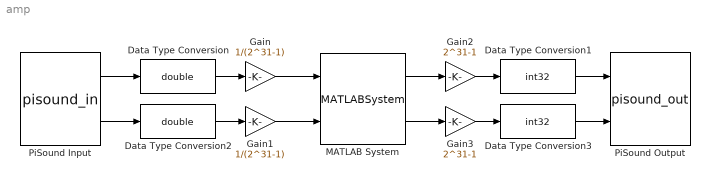
/*
 * Academic License - for use in teaching, academic research, and meeting
 * course requirements at degree granting institutions only.  Not for
 * government, commercial, or other organizational use.
 *
 * File: amp.c
 *
 * Code generated for Simulink model 'amp'.
 *
 * Model version                  : 1.10
 * Simulink Coder version         : 25.2 (R2025b) 28-Jul-2025
 * C/C++ source code generated on : Tue Mar  3 20:32:49 2026
 *
 * Target selection: ert.tlc
 * Embedded hardware selection: Intel->x86-64 (Windows64)
 * Code generation objectives: Unspecified
 * Validation result: Not run
 */

#include "amp.h"
#include <math.h>
#include "rt_nonfinite.h"
#include "rtwtypes.h"
#include "amp_private.h"

/* Block signals (default storage) */
B_amp_T amp_B;

/* Block states (default storage) */
DW_amp_T amp_DW;

/* Real-time model */
static RT_MODEL_amp_T amp_M_;
RT_MODEL_amp_T *const amp_M = &amp_M_;

/* Model step function */
void amp_step(void)
{
  real_T rtb_MATLABSystem_o1_0[128];
  real_T rtb_MATLABSystem_o2_0[128];
  real_T tmp;
  int32_T i;

  /* S-Function (pisound_in): '<Root>/PiSound Input' */

  /* Level2 S-Function Block: '<Root>/PiSound Input' (pisound_in) */
  {
    SimStruct *rts = amp_M->childSfunctions[0];
    sfcnOutputs(rts,0);
  }

  /* MATLABSystem: '<Root>/MATLAB System' incorporates:
   *  DataTypeConversion: '<Root>/Data Type Conversion'
   *  DataTypeConversion: '<Root>/Data Type Conversion2'
   *  Gain: '<Root>/Gain'
   *  Gain: '<Root>/Gain1'
   */
  if (amp_DW.obj.Gain != amp_P.Gain_rt) {
    amp_DW.obj.Gain = amp_P.Gain_rt;
  }

  if (amp_DW.obj.Bypass != amp_P.Bypass_rt) {
    amp_DW.obj.Bypass = amp_P.Bypass_rt;
  }

  /*  Implement algorithm  */
  if (amp_DW.obj.Bypass) {
    for (i = 0; i < 128; i++) {
      rtb_MATLABSystem_o1_0[i] = amp_P.Gain_Gain * (real_T)
        amp_B.PiSoundInput_o1[i];
      rtb_MATLABSystem_o2_0[i] = amp_P.Gain1_Gain * (real_T)
        amp_B.PiSoundInput_o2[i];
    }
  } else {
    for (i = 0; i < 128; i++) {
      rtb_MATLABSystem_o1_0[i] = amp_P.Gain_Gain * (real_T)
        amp_B.PiSoundInput_o1[i] * amp_DW.obj.Gain;
      rtb_MATLABSystem_o2_0[i] = amp_P.Gain1_Gain * (real_T)
        amp_B.PiSoundInput_o2[i] * amp_DW.obj.Gain;
    }
  }

  for (i = 0; i < 128; i++) {
    /* DataTypeConversion: '<Root>/Data Type Conversion1' incorporates:
     *  Gain: '<Root>/Gain2'
     *  MATLABSystem: '<Root>/MATLAB System'
     */
    tmp = floor(amp_P.Gain2_Gain * rtb_MATLABSystem_o1_0[i]);
    if (rtIsNaN(tmp) || rtIsInf(tmp)) {
      tmp = 0.0;
    } else {
      tmp = fmod(tmp, 4.294967296E+9);
    }

    /* DataTypeConversion: '<Root>/Data Type Conversion1' */
    amp_B.DataTypeConversion1[i] = tmp < 0.0 ? -(int32_T)(uint32_T)-tmp :
      (int32_T)(uint32_T)tmp;

    /* DataTypeConversion: '<Root>/Data Type Conversion3' incorporates:
     *  Gain: '<Root>/Gain3'
     *  MATLABSystem: '<Root>/MATLAB System'
     */
    tmp = floor(amp_P.Gain3_Gain * rtb_MATLABSystem_o2_0[i]);
    if (rtIsNaN(tmp) || rtIsInf(tmp)) {
      tmp = 0.0;
    } else {
      tmp = fmod(tmp, 4.294967296E+9);
    }

    /* DataTypeConversion: '<Root>/Data Type Conversion3' */
    amp_B.DataTypeConversion3[i] = tmp < 0.0 ? -(int32_T)(uint32_T)-tmp :
      (int32_T)(uint32_T)tmp;
  }

  /* S-Function (pisound_out): '<Root>/PiSound Output' */

  /* Level2 S-Function Block: '<Root>/PiSound Output' (pisound_out) */
  {
    SimStruct *rts = amp_M->childSfunctions[1];
    sfcnOutputs(rts,0);
  }

  /* Update absolute time for base rate */
  /* The "clockTick0" counts the number of times the code of this task has
   * been executed. The absolute time is the multiplication of "clockTick0"
   * and "Timing.stepSize0". Size of "clockTick0" ensures timer will not
   * overflow during the application lifespan selected.
   */
  amp_M->Timing.t[0] =
    ((time_T)(++amp_M->Timing.clockTick0)) * amp_M->Timing.stepSize0;
}
